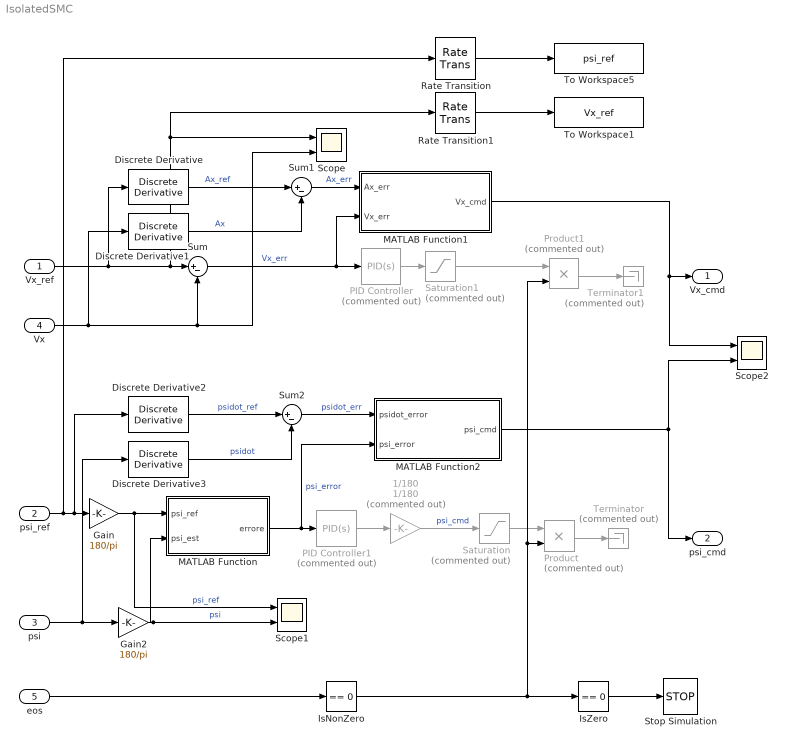
== matlab function IsolatedSMC/MATLAB Function1 ==
function Vx_cmd = SMC_Vx(Ax_err, Vx_err)
% SMC params
lamda = 30;
K = 0.1;
% Sliding surface
s = zeros(1);
s = (Ax_err) + lamda*(Vx_err);


Vx_cmd = K*sign(s);

== matlab function IsolatedSMC/MATLAB Function ==
function errore = fcn(psi_ref, psi_est)
errore=psi_ref-psi_est;

if abs(errore)>180
    errore=errore-360*sign(errore);
end

== matlab function IsolatedSMC/MATLAB Function2 ==
function psi_cmd = SMC_psi(psidot_error, psi_error)
% SMC params
lamda = 100;
K = 0.2;
% Sliding surface
s = zeros(1);
s = (psidot_error) + lamda*(psi_error);


psi_cmd = K*sign(s);

//
// Academic License - for use in teaching, academic research, and meeting
// course requirements at degree granting institutions only.  Not for
// government, commercial, or other organizational use.
//
// File: IsolatedSMC.cpp
//
// Code generated for Simulink model 'IsolatedSMC'.
//
// Model version                  : 1.2
// Simulink Coder version         : 9.4 (R2020b) 29-Jul-2020
// C/C++ source code generated on : Thu Dec  2 11:41:18 2021
//
// Target selection: ert.tlc
// Embedded hardware selection: Intel->x86-64 (Windows64)
// Code generation objectives: Unspecified
// Validation result: Not run
//
#include "IsolatedSMC.h"
#include "IsolatedSMC_private.h"

// Model step function
void IsolatedSMCModelClass::step()
{
  real_T rtb_TSamp;
  real_T rtb_TSamp_h;
  real_T rtb_TSamp_o;
  real_T rtb_TSamp_p0;
  real_T rtb_errore;
  real_T rtb_errore_0;

  // SampleTimeMath: '<S1>/TSamp' incorporates:
  //   Inport: '<Root>/Vx_ref'
  //
  //  About '<S1>/TSamp':
  //   y = u * K where K = 1 / ( w * Ts )

  rtb_TSamp = IsolatedSMC_U.Vx_ref * 100.0;

  // SampleTimeMath: '<S2>/TSamp' incorporates:
  //   Inport: '<Root>/Vx'
  //
  //  About '<S2>/TSamp':
  //   y = u * K where K = 1 / ( w * Ts )

  rtb_TSamp_o = IsolatedSMC_U.Vx * 100.0;

  // MATLAB Function: '<Root>/MATLAB Function1' incorporates:
  //   Inport: '<Root>/Vx'
  //   Inport: '<Root>/Vx_ref'
  //   Sum: '<Root>/Sum'
  //   Sum: '<Root>/Sum1'
  //   Sum: '<S1>/Diff'
  //   Sum: '<S2>/Diff'
  //   UnitDelay: '<S1>/UD'
  //   UnitDelay: '<S2>/UD'
  //
  //  Block description for '<S1>/Diff':
  //
  //   Add in CPU
  //
  //  Block description for '<S2>/Diff':
  //
  //   Add in CPU
  //
  //  Block description for '<S1>/UD':
  //
  //   Store in Global RAM
  //
  //  Block description for '<S2>/UD':
  //
  //   Store in Global RAM

  rtb_errore = ((rtb_TSamp - IsolatedSMC_DW.UD_DSTATE) - (rtb_TSamp_o -
    IsolatedSMC_DW.UD_DSTATE_o)) + (IsolatedSMC_U.Vx_ref - IsolatedSMC_U.Vx) *
    30.0;
  if (rtb_errore < 0.0) {
    rtb_errore = -1.0;
  } else if (rtb_errore > 0.0) {
    rtb_errore = 1.0;
  } else if (rtb_errore == 0.0) {
    rtb_errore = 0.0;
  } else {
    rtb_errore = (rtNaN);
  }

  // Outport: '<Root>/Vx_cmd' incorporates:
  //   MATLAB Function: '<Root>/MATLAB Function1'

  IsolatedSMC_Y.Vx_cmd = 0.1 * rtb_errore;

  // Stop: '<Root>/Stop Simulation' incorporates:
  //   Constant: '<S5>/Constant'
  //   Inport: '<Root>/eos'
  //   RelationalOperator: '<S5>/Compare'

  if (!(IsolatedSMC_U.eos == 0.0)) {
    rtmSetStopRequested((&IsolatedSMC_M), 1);
  }

  // End of Stop: '<Root>/Stop Simulation'

  // SampleTimeMath: '<S3>/TSamp' incorporates:
  //   Inport: '<Root>/psi_ref'
  //
  //  About '<S3>/TSamp':
  //   y = u * K where K = 1 / ( w * Ts )

  rtb_TSamp_p0 = IsolatedSMC_U.psi_ref * 100.0;

  // SampleTimeMath: '<S4>/TSamp' incorporates:
  //   Inport: '<Root>/psi'
  //
  //  About '<S4>/TSamp':
  //   y = u * K where K = 1 / ( w * Ts )

  rtb_TSamp_h = IsolatedSMC_U.psi * 100.0;

  // MATLAB Function: '<Root>/MATLAB Function' incorporates:
  //   Gain: '<Root>/Gain'
  //   Gain: '<Root>/Gain2'
  //   Inport: '<Root>/psi'
  //   Inport: '<Root>/psi_ref'

  rtb_errore = 57.295779513082323 * IsolatedSMC_U.psi_ref - 57.295779513082323 *
    IsolatedSMC_U.psi;
  if (std::abs(rtb_errore) > 180.0) {
    if (rtb_errore < 0.0) {
      rtb_errore_0 = -1.0;
    } else if (rtb_errore > 0.0) {
      rtb_errore_0 = 1.0;
    } else if (rtb_errore == 0.0) {
      rtb_errore_0 = 0.0;
    } else {
      rtb_errore_0 = (rtNaN);
    }

    rtb_errore -= 360.0 * rtb_errore_0;
  }

  // End of MATLAB Function: '<Root>/MATLAB Function'

  // MATLAB Function: '<Root>/MATLAB Function2' incorporates:
  //   Sum: '<Root>/Sum2'
  //   Sum: '<S3>/Diff'
  //   Sum: '<S4>/Diff'
  //   UnitDelay: '<S3>/UD'
  //   UnitDelay: '<S4>/UD'
  //
  //  Block description for '<S3>/Diff':
  //
  //   Add in CPU
  //
  //  Block description for '<S4>/Diff':
  //
  //   Add in CPU
  //
  //  Block description for '<S3>/UD':
  //
  //   Store in Global RAM
  //
  //  Block description for '<S4>/UD':
  //
  //   Store in Global RAM

  rtb_errore = ((rtb_TSamp_p0 - IsolatedSMC_DW.UD_DSTATE_g) - (rtb_TSamp_h -
    IsolatedSMC_DW.UD_DSTATE_b)) + 100.0 * rtb_errore;
  if (rtb_errore < 0.0) {
    rtb_errore = -1.0;
  } else if (rtb_errore > 0.0) {
    rtb_errore = 1.0;
  } else if (rtb_errore == 0.0) {
    rtb_errore = 0.0;
  } else {
    rtb_errore = (rtNaN);
  }

  // Outport: '<Root>/psi_cmd' incorporates:
  //   MATLAB Function: '<Root>/MATLAB Function2'

  IsolatedSMC_Y.psi_cmd = 0.2 * rtb_errore;

  // Update for UnitDelay: '<S1>/UD'
  //
  //  Block description for '<S1>/UD':
  //
  //   Store in Global RAM

  IsolatedSMC_DW.UD_DSTATE = rtb_TSamp;

  // Update for UnitDelay: '<S2>/UD'
  //
  //  Block description for '<S2>/UD':
  //
  //   Store in Global RAM

  IsolatedSMC_DW.UD_DSTATE_o = rtb_TSamp_o;

  // Update for UnitDelay: '<S3>/UD'
  //
  //  Block description for '<S3>/UD':
  //
  //   Store in Global RAM

  IsolatedSMC_DW.UD_DSTATE_g = rtb_TSamp_p0;

  // Update for UnitDelay: '<S4>/UD'
  //
  //  Block description for '<S4>/UD':
  //
  //   Store in Global RAM

  IsolatedSMC_DW.UD_DSTATE_b = rtb_TSamp_h;
}
